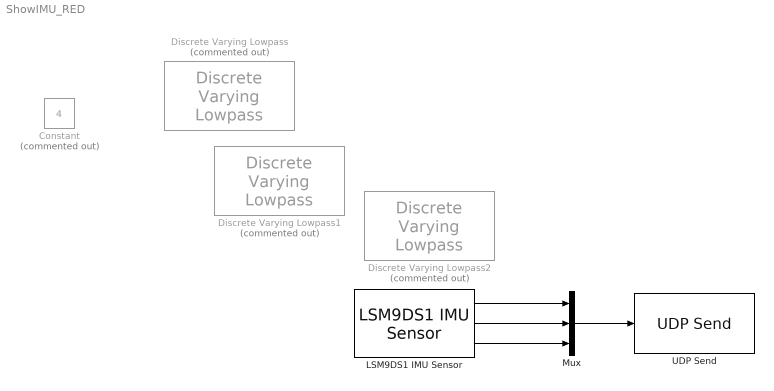
//
// Academic License - for use in teaching, academic research, and meeting
// course requirements at degree granting institutions only.  Not for
// government, commercial, or other organizational use.
//
// File: ShowIMU_RED.cpp
//
// Code generated for Simulink model 'ShowIMU_RED'.
//
// Model version                  : 1.29
// Simulink Coder version         : 9.3 (R2020a) 18-Nov-2019
// C/C++ source code generated on : Sat Oct 17 10:57:55 2020
//
// Target selection: ert.tlc
// Embedded hardware selection: ARM Compatible->ARM Cortex
// Emulation hardware selection:
//    Differs from embedded hardware (MATLAB Host)
// Code generation objectives: Unspecified
// Validation result: Not run
//
#include "ShowIMU_RED.h"
#include "ShowIMU_RED_private.h"

// Block signals (default storage)
B_ShowIMU_RED_T ShowIMU_RED_B;

// Block states (default storage)
DW_ShowIMU_RED_T ShowIMU_RED_DW;

// Real-time model
RT_MODEL_ShowIMU_RED_T ShowIMU_RED_M_ = RT_MODEL_ShowIMU_RED_T();
RT_MODEL_ShowIMU_RED_T *const ShowIMU_RED_M = &ShowIMU_RED_M_;

// Forward declaration for local functions
static void ShowIMU_RED_SystemCore_release(const raspi_internal_lsm9ds1Block_S_T
  *obj);
static void ShowIMU_RED_SystemCore_delete(const raspi_internal_lsm9ds1Block_S_T *
  obj);
static void matlabCodegenHandle_matlabCodeg(raspi_internal_lsm9ds1Block_S_T *obj);
static void ShowIMU_R_SystemCore_release_dj(j_codertarget_raspi_internal__T *obj);
static void ShowIMU_RE_SystemCore_delete_dj(j_codertarget_raspi_internal__T *obj);
static void matlabCodegenHandle_matlabCo_dj(j_codertarget_raspi_internal__T *obj);
static void ShowIMU_RE_SystemCore_release_d(i_codertarget_raspi_internal__T *obj);
static void ShowIMU_RED_SystemCore_delete_d(i_codertarget_raspi_internal__T *obj);
static void matlabCodegenHandle_matlabCod_d(i_codertarget_raspi_internal__T *obj);
static raspi_internal_lsm9ds1Block_S_T *ShowI_lsm9ds1Block_lsm9ds1Block
  (raspi_internal_lsm9ds1Block_S_T *obj);
static void ShowIMU_RED_SystemCore_setup(raspi_internal_lsm9ds1Block_S_T *obj);
static void ShowIMU_RED_SystemCore_release(const raspi_internal_lsm9ds1Block_S_T
  *obj)
{
  if ((obj->isInitialized == 1) && obj->isSetupComplete) {
    MW_I2C_Close(obj->i2cobj_A_G.MW_I2C_HANDLE);
    MW_I2C_Close(obj->i2cobj_MAG.MW_I2C_HANDLE);
  }
}

static void ShowIMU_RED_SystemCore_delete(const raspi_internal_lsm9ds1Block_S_T *
  obj)
{
  ShowIMU_RED_SystemCore_release(obj);
}

static void matlabCodegenHandle_matlabCodeg(raspi_internal_lsm9ds1Block_S_T *obj)
{
  if (!obj->matlabCodegenIsDeleted) {
    obj->matlabCodegenIsDeleted = true;
    ShowIMU_RED_SystemCore_delete(obj);
  }
}

static void ShowIMU_R_SystemCore_release_dj(j_codertarget_raspi_internal__T *obj)
{
  if (obj->isInitialized == 1) {
    obj->isInitialized = 2;
  }
}

static void ShowIMU_RE_SystemCore_delete_dj(j_codertarget_raspi_internal__T *obj)
{
  ShowIMU_R_SystemCore_release_dj(obj);
}

static void matlabCodegenHandle_matlabCo_dj(j_codertarget_raspi_internal__T *obj)
{
  if (!obj->matlabCodegenIsDeleted) {
    obj->matlabCodegenIsDeleted = true;
    ShowIMU_RE_SystemCore_delete_dj(obj);
  }
}

static void ShowIMU_RE_SystemCore_release_d(i_codertarget_raspi_internal__T *obj)
{
  if (obj->isInitialized == 1) {
    obj->isInitialized = 2;
  }
}

static void ShowIMU_RED_SystemCore_delete_d(i_codertarget_raspi_internal__T *obj)
{
  ShowIMU_RE_SystemCore_release_d(obj);
}

static void matlabCodegenHandle_matlabCod_d(i_codertarget_raspi_internal__T *obj)
{
  if (!obj->matlabCodegenIsDeleted) {
    obj->matlabCodegenIsDeleted = true;
    ShowIMU_RED_SystemCore_delete_d(obj);
  }
}

static raspi_internal_lsm9ds1Block_S_T *ShowI_lsm9ds1Block_lsm9ds1Block
  (raspi_internal_lsm9ds1Block_S_T *obj)
{
  raspi_internal_lsm9ds1Block_S_T *b_obj;
  int32_T i;
  static const int8_T tmp[9] = { 1, 0, 0, 0, 1, 0, 0, 0, 1 };

  for (i = 0; i < 9; i++) {
    obj->CalGyroA[i] = tmp[i];
  }

  obj->CalGyroB[0] = 0.0;
  obj->CalGyroB[1] = 0.0;
  obj->CalGyroB[2] = 0.0;
  for (i = 0; i < 9; i++) {
    obj->CalAccelA[i] = tmp[i];
  }

  obj->CalAccelB[0] = 0.0;
  obj->CalAccelB[1] = 0.0;
  obj->CalAccelB[2] = 0.0;
  for (i = 0; i < 9; i++) {
    obj->CalMagA[i] = tmp[i];
  }

  obj->CalMagB[0] = 0.0;
  obj->CalMagB[1] = 0.0;
  obj->CalMagB[2] = 0.0;
  obj->isInitialized = 0;
  b_obj = obj;
  obj->i2cobj_A_G.isInitialized = 0;
  obj->i2cobj_A_G.matlabCodegenIsDeleted = false;
  obj->i2cobj_MAG.isInitialized = 0;
  obj->i2cobj_MAG.matlabCodegenIsDeleted = false;
  obj->matlabCodegenIsDeleted = false;
  return b_obj;
}

static void ShowIMU_RED_SystemCore_setup(raspi_internal_lsm9ds1Block_S_T *obj)
{
  MW_I2C_Mode_Type ModeType;
  uint32_T i2cname;
  uint8_T b_SwappedDataBytes[2];
  uint8_T CastedData;
  uint8_T SwappedDataBytes[2];
  obj->isSetupComplete = false;
  obj->isInitialized = 1;
  ModeType = MW_I2C_MASTER;
  i2cname = 1;
  obj->i2cobj_A_G.MW_I2C_HANDLE = MW_I2C_Open(i2cname, ModeType);
  obj->i2cobj_A_G.BusSpeed = 100000U;
  MW_I2C_SetBusSpeed(obj->i2cobj_A_G.MW_I2C_HANDLE, obj->i2cobj_A_G.BusSpeed);
  CastedData = 104U;
  std::memcpy((void *)&b_SwappedDataBytes[1], (void *)&CastedData, (uint32_T)
              ((size_t)1 * sizeof(uint8_T)));
  b_SwappedDataBytes[0] = 16U;
  std::memcpy((void *)&SwappedDataBytes[0], (void *)&b_SwappedDataBytes[0],
              (uint32_T)((size_t)2 * sizeof(uint8_T)));
  MW_I2C_MasterWrite(obj->i2cobj_A_G.MW_I2C_HANDLE, 106U, SwappedDataBytes, 2U,
                     false, false);
  CastedData = 0U;
  std::memcpy((void *)&b_SwappedDataBytes[1], (void *)&CastedData, (uint32_T)
              ((size_t)1 * sizeof(uint8_T)));
  b_SwappedDataBytes[0] = 17U;
  std::memcpy((void *)&SwappedDataBytes[0], (void *)&b_SwappedDataBytes[0],
              (uint32_T)((size_t)2 * sizeof(uint8_T)));
  MW_I2C_MasterWrite(obj->i2cobj_A_G.MW_I2C_HANDLE, 106U, SwappedDataBytes, 2U,
                     false, false);
  CastedData = 0U;
  std::memcpy((void *)&b_SwappedDataBytes[1], (void *)&CastedData, (uint32_T)
              ((size_t)1 * sizeof(uint8_T)));
  b_SwappedDataBytes[0] = 18U;
  std::memcpy((void *)&SwappedDataBytes[0], (void *)&b_SwappedDataBytes[0],
              (uint32_T)((size_t)2 * sizeof(uint8_T)));
  MW_I2C_MasterWrite(obj->i2cobj_A_G.MW_I2C_HANDLE, 106U, SwappedDataBytes, 2U,
                     false, false);
  CastedData = 56U;
  std::memcpy((void *)&b_SwappedDataBytes[1], (void *)&CastedData, (uint32_T)
              ((size_t)1 * sizeof(uint8_T)));
  b_SwappedDataBytes[0] = 30U;
  std::memcpy((void *)&SwappedDataBytes[0], (void *)&b_SwappedDataBytes[0],
              (uint32_T)((size_t)2 * sizeof(uint8_T)));
  MW_I2C_MasterWrite(obj->i2cobj_A_G.MW_I2C_HANDLE, 106U, SwappedDataBytes, 2U,
                     false, false);
  CastedData = 0U;
  std::memcpy((void *)&b_SwappedDataBytes[1], (void *)&CastedData, (uint32_T)
              ((size_t)1 * sizeof(uint8_T)));
  b_SwappedDataBytes[0] = 19U;
  std::memcpy((void *)&SwappedDataBytes[0], (void *)&b_SwappedDataBytes[0],
              (uint32_T)((size_t)2 * sizeof(uint8_T)));
  MW_I2C_MasterWrite(obj->i2cobj_A_G.MW_I2C_HANDLE, 106U, SwappedDataBytes, 2U,
                     false, false);
  CastedData = 56U;
  std::memcpy((void *)&b_SwappedDataBytes[1], (void *)&CastedData, (uint32_T)
              ((size_t)1 * sizeof(uint8_T)));
  b_SwappedDataBytes[0] = 31U;
  std::memcpy((void *)&SwappedDataBytes[0], (void *)&b_SwappedDataBytes[0],
              (uint32_T)((size_t)2 * sizeof(uint8_T)));
  MW_I2C_MasterWrite(obj->i2cobj_A_G.MW_I2C_HANDLE, 106U, SwappedDataBytes, 2U,
                     false, false);
  CastedData = 103U;
  std::memcpy((void *)&b_SwappedDataBytes[1], (void *)&CastedData, (uint32_T)
              ((size_t)1 * sizeof(uint8_T)));
  b_SwappedDataBytes[0] = 32U;
  std::memcpy((void *)&SwappedDataBytes[0], (void *)&b_SwappedDataBytes[0],
              (uint32_T)((size_t)2 * sizeof(uint8_T)));
  MW_I2C_MasterWrite(obj->i2cobj_A_G.MW_I2C_HANDLE, 106U, SwappedDataBytes, 2U,
                     false, false);
  CastedData = 0U;
  std::memcpy((void *)&b_SwappedDataBytes[1], (void *)&CastedData, (uint32_T)
              ((size_t)1 * sizeof(uint8_T)));
  b_SwappedDataBytes[0] = 33U;
  std::memcpy((void *)&SwappedDataBytes[0], (void *)&b_SwappedDataBytes[0],
              (uint32_T)((size_t)2 * sizeof(uint8_T)));
  MW_I2C_MasterWrite(obj->i2cobj_A_G.MW_I2C_HANDLE, 106U, SwappedDataBytes, 2U,
                     false, false);
  CastedData = 4U;
  std::memcpy((void *)&b_SwappedDataBytes[1], (void *)&CastedData, (uint32_T)
              ((size_t)1 * sizeof(uint8_T)));
  b_SwappedDataBytes[0] = 34U;
  std::memcpy((void *)&SwappedDataBytes[0], (void *)&b_SwappedDataBytes[0],
              (uint32_T)((size_t)2 * sizeof(uint8_T)));
  MW_I2C_MasterWrite(obj->i2cobj_A_G.MW_I2C_HANDLE, 106U, SwappedDataBytes, 2U,
                     false, false);
  ModeType = MW_I2C_MASTER;
  i2cname = 1;
  obj->i2cobj_MAG.MW_I2C_HANDLE = MW_I2C_Open(i2cname, ModeType);
  obj->i2cobj_MAG.BusSpeed = 100000U;
  MW_I2C_SetBusSpeed(obj->i2cobj_MAG.MW_I2C_HANDLE, obj->i2cobj_MAG.BusSpeed);
  CastedData = 24U;
  std::memcpy((void *)&b_SwappedDataBytes[1], (void *)&CastedData, (uint32_T)
              ((size_t)1 * sizeof(uint8_T)));
  b_SwappedDataBytes[0] = 32U;
  std::memcpy((void *)&SwappedDataBytes[0], (void *)&b_SwappedDataBytes[0],
              (uint32_T)((size_t)2 * sizeof(uint8_T)));
  MW_I2C_MasterWrite(obj->i2cobj_MAG.MW_I2C_HANDLE, 28U, SwappedDataBytes, 2U,
                     false, false);
  CastedData = 0U;
  std::memcpy((void *)&b_SwappedDataBytes[1], (void *)&CastedData, (uint32_T)
              ((size_t)1 * sizeof(uint8_T)));
  b_SwappedDataBytes[0] = 33U;
  std::memcpy((void *)&SwappedDataBytes[0], (void *)&b_SwappedDataBytes[0],
              (uint32_T)((size_t)2 * sizeof(uint8_T)));
  MW_I2C_MasterWrite(obj->i2cobj_MAG.MW_I2C_HANDLE, 28U, SwappedDataBytes, 2U,
                     false, false);
  CastedData = 0U;
  std::memcpy((void *)&b_SwappedDataBytes[1], (void *)&CastedData, (uint32_T)
              ((size_t)1 * sizeof(uint8_T)));
  b_SwappedDataBytes[0] = 34U;
  std::memcpy((void *)&SwappedDataBytes[0], (void *)&b_SwappedDataBytes[0],
              (uint32_T)((size_t)2 * sizeof(uint8_T)));
  MW_I2C_MasterWrite(obj->i2cobj_MAG.MW_I2C_HANDLE, 28U, SwappedDataBytes, 2U,
                     false, false);
  CastedData = 0U;
  std::memcpy((void *)&b_SwappedDataBytes[1], (void *)&CastedData, (uint32_T)
              ((size_t)1 * sizeof(uint8_T)));
  b_SwappedDataBytes[0] = 35U;
  std::memcpy((void *)&SwappedDataBytes[0], (void *)&b_SwappedDataBytes[0],
              (uint32_T)((size_t)2 * sizeof(uint8_T)));
  MW_I2C_MasterWrite(obj->i2cobj_MAG.MW_I2C_HANDLE, 28U, SwappedDataBytes, 2U,
                     false, false);
  CastedData = 0U;
  std::memcpy((void *)&b_SwappedDataBytes[1], (void *)&CastedData, (uint32_T)
              ((size_t)1 * sizeof(uint8_T)));
  b_SwappedDataBytes[0] = 36U;
  std::memcpy((void *)&SwappedDataBytes[0], (void *)&b_SwappedDataBytes[0],
              (uint32_T)((size_t)2 * sizeof(uint8_T)));
  MW_I2C_MasterWrite(obj->i2cobj_MAG.MW_I2C_HANDLE, 28U, SwappedDataBytes, 2U,
                     false, false);
  obj->isSetupComplete = true;
}

// Model step function
void ShowIMU_RED_step(void)
{
  char_T *sErr;
  int16_T b_RegisterValue[3];
  real_T a[3];
  uint8_T SwappedDataBytes;
  uint8_T status;
  uint8_T output_raw[6];
  int32_T i;
  real_T *b;

  // MATLABSystem: '<Root>/LSM9DS1 IMU Sensor'
  status = 24U;
  std::memcpy((void *)&SwappedDataBytes, (void *)&status, (uint32_T)((size_t)1 *
    sizeof(uint8_T)));
  status = MW_I2C_MasterWrite(ShowIMU_RED_DW.obj.i2cobj_A_G.MW_I2C_HANDLE, 106U,
    &SwappedDataBytes, 1U, true, false);
  if (0 == status) {
    MW_I2C_MasterRead(ShowIMU_RED_DW.obj.i2cobj_A_G.MW_I2C_HANDLE, 106U,
                      output_raw, 6U, false, true);
    std::memcpy((void *)&b_RegisterValue[0], (void *)&output_raw[0], (uint32_T)
                ((size_t)3 * sizeof(int16_T)));
  } else {
    b_RegisterValue[0] = 0;
    b_RegisterValue[1] = 0;
    b_RegisterValue[2] = 0;
  }

  b = &ShowIMU_RED_DW.obj.CalGyroA[0];
  for (i = 0; i < 3; i++) {
    ShowIMU_RED_B.a[i] = ((b[3 * i + 1] * static_cast<real_T>(b_RegisterValue[1])
      + b[3 * i] * static_cast<real_T>(b_RegisterValue[0])) + b[3 * i + 2] *
                          static_cast<real_T>(b_RegisterValue[2])) +
      ShowIMU_RED_DW.obj.CalGyroB[i];
  }

  status = 40U;
  std::memcpy((void *)&SwappedDataBytes, (void *)&status, (uint32_T)((size_t)1 *
    sizeof(uint8_T)));
  status = MW_I2C_MasterWrite(ShowIMU_RED_DW.obj.i2cobj_A_G.MW_I2C_HANDLE, 106U,
    &SwappedDataBytes, 1U, true, false);
  if (0 == status) {
    MW_I2C_MasterRead(ShowIMU_RED_DW.obj.i2cobj_A_G.MW_I2C_HANDLE, 106U,
                      output_raw, 6U, false, true);
    std::memcpy((void *)&b_RegisterValue[0], (void *)&output_raw[0], (uint32_T)
                ((size_t)3 * sizeof(int16_T)));
  } else {
    b_RegisterValue[0] = 0;
    b_RegisterValue[1] = 0;
    b_RegisterValue[2] = 0;
  }

  b = &ShowIMU_RED_DW.obj.CalAccelA[0];
  for (i = 0; i < 3; i++) {
    ShowIMU_RED_B.a_m[i] = ((b[3 * i + 1] * static_cast<real_T>(b_RegisterValue
      [1]) + b[3 * i] * static_cast<real_T>(b_RegisterValue[0])) + b[3 * i + 2] *
      static_cast<real_T>(b_RegisterValue[2])) + ShowIMU_RED_DW.obj.CalAccelB[i];
  }

  status = 40U;
  std::memcpy((void *)&SwappedDataBytes, (void *)&status, (uint32_T)((size_t)1 *
    sizeof(uint8_T)));
  status = MW_I2C_MasterWrite(ShowIMU_RED_DW.obj.i2cobj_MAG.MW_I2C_HANDLE, 28U,
    &SwappedDataBytes, 1U, true, false);
  if (0 == status) {
    MW_I2C_MasterRead(ShowIMU_RED_DW.obj.i2cobj_MAG.MW_I2C_HANDLE, 28U,
                      output_raw, 6U, false, true);
    std::memcpy((void *)&b_RegisterValue[0], (void *)&output_raw[0], (uint32_T)
                ((size_t)3 * sizeof(int16_T)));
  } else {
    b_RegisterValue[0] = 0;
    b_RegisterValue[1] = 0;
    b_RegisterValue[2] = 0;
  }

  b = &ShowIMU_RED_DW.obj.CalMagA[0];
  for (i = 0; i < 3; i++) {
    a[i] = ((b[3 * i + 1] * static_cast<real_T>(b_RegisterValue[1]) + b[3 * i] *
             static_cast<real_T>(b_RegisterValue[0])) + b[3 * i + 2] *
            static_cast<real_T>(b_RegisterValue[2])) +
      ShowIMU_RED_DW.obj.CalMagB[i];
  }

  // SignalConversion generated from: '<Root>/UDP Send' incorporates:
  //   MATLABSystem: '<Root>/LSM9DS1 IMU Sensor'

  ShowIMU_RED_B.TmpSignalConversionAtUDPSendInp[0] = ShowIMU_RED_B.a[0] * 500.0 /
    32768.0;
  ShowIMU_RED_B.TmpSignalConversionAtUDPSendInp[1] = ShowIMU_RED_B.a[1] * 500.0 /
    32768.0;
  ShowIMU_RED_B.TmpSignalConversionAtUDPSendInp[2] = ShowIMU_RED_B.a[2] * 500.0 /
    32768.0;
  ShowIMU_RED_B.TmpSignalConversionAtUDPSendInp[3] = ShowIMU_RED_B.a_m[0] * 2.0 /
    32768.0;
  ShowIMU_RED_B.TmpSignalConversionAtUDPSendInp[4] = ShowIMU_RED_B.a_m[1] * 2.0 /
    32768.0;
  ShowIMU_RED_B.TmpSignalConversionAtUDPSendInp[5] = ShowIMU_RED_B.a_m[2] * 2.0 /
    32768.0;
  ShowIMU_RED_B.TmpSignalConversionAtUDPSendInp[6] = a[0] * 4.0 / 32768.0;
  ShowIMU_RED_B.TmpSignalConversionAtUDPSendInp[7] = a[1] * 4.0 / 32768.0;
  ShowIMU_RED_B.TmpSignalConversionAtUDPSendInp[8] = a[2] * 4.0 / 32768.0;

  // Update for S-Function (sdspToNetwork): '<Root>/UDP Send'
  sErr = GetErrorBuffer(&ShowIMU_RED_DW.UDPSend_NetworkLib[0U]);
  LibUpdate_Network(&ShowIMU_RED_DW.UDPSend_NetworkLib[0U],
                    &ShowIMU_RED_B.TmpSignalConversionAtUDPSendInp[0U], 9);
  if (*sErr != 0) {
    rtmSetErrorStatus(ShowIMU_RED_M, sErr);
    rtmSetStopRequested(ShowIMU_RED_M, 1);
  }

  // End of Update for S-Function (sdspToNetwork): '<Root>/UDP Send'
}
